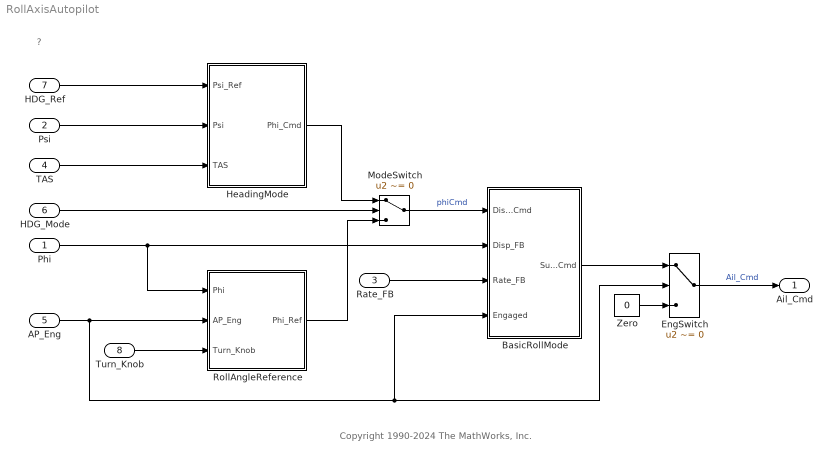
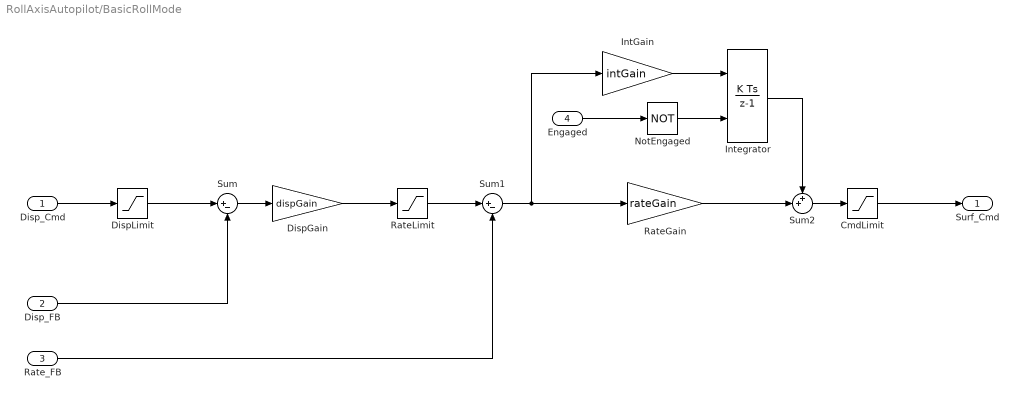
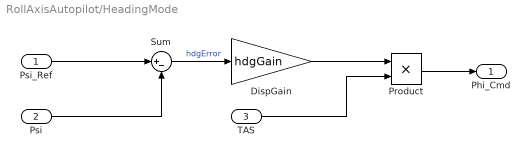
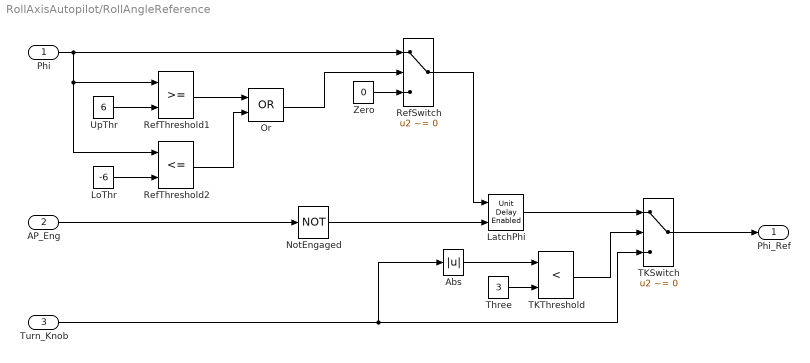
/*
 * File: RollAxisAutopilot.c
 *
 * Code generated for Simulink model 'RollAxisAutopilot'.
 *
 * Model version                  : 13.1
 * Simulink Coder version         : 26.1 (R2026a) 20-Nov-2025
 * C/C++ source code generated on : Fri Sep  4 12:52:27 2026
 *
 * Target selection: ert.tlc
 * Embedded hardware selection: Intel->x86-64 (Windows64)
 * Code generation objectives:
 *    1. Execution efficiency
 *    2. Traceability
 *    3. Safety precaution
 *    4. RAM efficiency
 * Validation result: Not run
 */

#include "RollAxisAutopilot.h"
#include <math.h>
#include "rtwtypes.h"

/* Block signals and states (default storage) */
DW rtDW;

/* External inputs (root inport signals with default storage) */
ExtU rtU;

/* External outputs (root outports fed by signals with default storage) */
ExtY rtY;

/* Model step function */
void RollAxisAutopilot_step(void)
{
  real32_T rtb_Sum1;
  boolean_T tmp;

  /* Outputs for Atomic SubSystem: '<Root>/RollAngleReference' */
  /* UnitDelay: '<S4>/FixPt Unit Delay1' */
  rtb_Sum1 = rtDW.FixPtUnitDelay1_DSTATE;

  /* Outputs for Atomic SubSystem: '<Root>/BasicRollMode' */
  /* Logic: '<S3>/NotEngaged' incorporates:
   *  Inport: '<Root>/AP_Eng'
   *  Logic: '<S1>/NotEngaged'
   */
  tmp = !rtU.AP_Eng;

  /* End of Outputs for SubSystem: '<Root>/BasicRollMode' */

  /* Switch: '<S4>/Enable' incorporates:
   *  Logic: '<S3>/NotEngaged'
   */
  if (tmp) {
    /* Switch: '<S3>/RefSwitch' incorporates:
     *  Constant: '<S3>/LoThr'
     *  Constant: '<S3>/UpThr'
     *  Constant: '<S3>/Zero'
     *  Inport: '<Root>/Phi'
     *  Logic: '<S3>/Or'
     *  RelationalOperator: '<S3>/RefThreshold1'
     *  RelationalOperator: '<S3>/RefThreshold2'
     *  UnitDelay: '<S4>/FixPt Unit Delay1'
     */
    if ((rtU.Phi >= 6.0F) || (rtU.Phi <= -6.0F)) {
      rtDW.FixPtUnitDelay1_DSTATE = rtU.Phi;
    } else {
      rtDW.FixPtUnitDelay1_DSTATE = 0.0F;
    }

    /* End of Switch: '<S3>/RefSwitch' */
  }

  /* End of Switch: '<S4>/Enable' */
  /* End of Outputs for SubSystem: '<Root>/RollAngleReference' */

  /* Switch: '<Root>/ModeSwitch' incorporates:
   *  Abs: '<S3>/Abs'
   *  Constant: '<S3>/Three'
   *  Gain: '<S2>/DispGain'
   *  Inport: '<Root>/HDG_Mode'
   *  Inport: '<Root>/HDG_Ref'
   *  Inport: '<Root>/Psi'
   *  Inport: '<Root>/TAS'
   *  Inport: '<Root>/Turn_Knob'
   *  Product: '<S2>/Product'
   *  RelationalOperator: '<S3>/TKThreshold'
   *  Sum: '<S2>/Sum'
   *  Switch: '<S3>/TKSwitch'
   */
  if (rtU.HDG_Mode) {
    /* Outputs for Atomic SubSystem: '<Root>/HeadingMode' */
    rtb_Sum1 = (rtU.HDG_Ref - rtU.Psi) * 0.015F * rtU.TAS;

    /* End of Outputs for SubSystem: '<Root>/HeadingMode' */

    /* Outputs for Atomic SubSystem: '<Root>/RollAngleReference' */
  } else if ((real32_T)fabs(rtU.Turn_Knob) >= 3.0F) {
    rtb_Sum1 = rtU.Turn_Knob;

    /* End of Outputs for SubSystem: '<Root>/RollAngleReference' */
  }

  /* End of Switch: '<Root>/ModeSwitch' */

  /* Outputs for Atomic SubSystem: '<Root>/BasicRollMode' */
  /* DiscreteIntegrator: '<S1>/Integrator' */
  if (tmp || (rtDW.Integrator_PrevResetState != 0)) {
    rtDW.Integrator_DSTATE = 0.0F;
  }

  /* Saturate: '<S1>/DispLimit' */
  if (rtb_Sum1 > 30.0F) {
    rtb_Sum1 = 30.0F;
  } else if (rtb_Sum1 < -30.0F) {
    rtb_Sum1 = -30.0F;
  }

  /* Gain: '<S1>/DispGain' incorporates:
   *  Inport: '<Root>/Phi'
   *  Saturate: '<S1>/DispLimit'
   *  Sum: '<S1>/Sum'
   */
  rtb_Sum1 = (rtb_Sum1 - rtU.Phi) * 0.75F;

  /* Saturate: '<S1>/RateLimit' */
  if (rtb_Sum1 > 6.0F) {
    rtb_Sum1 = 6.0F;
  } else if (rtb_Sum1 < -6.0F) {
    rtb_Sum1 = -6.0F;
  }

  /* Sum: '<S1>/Sum1' incorporates:
   *  Inport: '<Root>/Rate_FB'
   *  Saturate: '<S1>/RateLimit'
   */
  rtb_Sum1 -= rtU.Rate_FB;

  /* Sum: '<S1>/Sum2' incorporates:
   *  DiscreteIntegrator: '<S1>/Integrator'
   *  Gain: '<S1>/RateGain'
   */
  rtY.Ail_Cmd = 2.0F * rtb_Sum1 + rtDW.Integrator_DSTATE;

  /* Update for DiscreteIntegrator: '<S1>/Integrator' incorporates:
   *  Gain: '<S1>/IntGain'
   */
  rtDW.Integrator_DSTATE += 0.5F * rtb_Sum1 * 0.025F;
  if (rtDW.Integrator_DSTATE > 5.0F) {
    rtDW.Integrator_DSTATE = 5.0F;
  } else if (rtDW.Integrator_DSTATE < -5.0F) {
    rtDW.Integrator_DSTATE = -5.0F;
  }

  rtDW.Integrator_PrevResetState = (int8_T)tmp;

  /* End of Update for DiscreteIntegrator: '<S1>/Integrator' */
  /* End of Outputs for SubSystem: '<Root>/BasicRollMode' */

  /* Switch: '<Root>/EngSwitch' incorporates:
   *  Inport: '<Root>/AP_Eng'
   */
  if (rtU.AP_Eng) {
    /* Outputs for Atomic SubSystem: '<Root>/BasicRollMode' */
    /* Saturate: '<S1>/CmdLimit' */
    if (rtY.Ail_Cmd > 15.0F) {
      /* Sum: '<S1>/Sum2' incorporates:
       *  Outport: '<Root>/Ail_Cmd'
       */
      rtY.Ail_Cmd = 15.0F;
    } else if (rtY.Ail_Cmd < -15.0F) {
      /* Sum: '<S1>/Sum2' incorporates:
       *  Outport: '<Root>/Ail_Cmd'
       */
      rtY.Ail_Cmd = -15.0F;
    }

    /* End of Saturate: '<S1>/CmdLimit' */
    /* End of Outputs for SubSystem: '<Root>/BasicRollMode' */
  } else {
    /* Sum: '<S1>/Sum2' incorporates:
     *  Constant: '<Root>/Zero'
     *  Outport: '<Root>/Ail_Cmd'
     */
    rtY.Ail_Cmd = 0.0F;
  }

  /* End of Switch: '<Root>/EngSwitch' */
}
